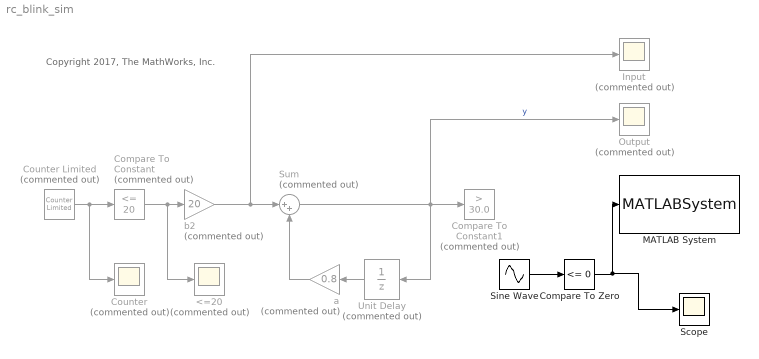
/*
 * Academic License - for use in teaching, academic research, and meeting
 * course requirements at degree granting institutions only.  Not for
 * government, commercial, or other organizational use.
 *
 * File: rc_blink_sim.c
 *
 * Code generated for Simulink model 'rc_blink_sim'.
 *
 * Model version                  : 1.89
 * Simulink Coder version         : 8.12 (R2017a) 16-Feb-2017
 * C/C++ source code generated on : Thu May 25 18:34:06 2017
 *
 * Target selection: ert.tlc
 * Embedded hardware selection: ARM Compatible->ARM Cortex
 * Code generation objectives: Unspecified
 * Validation result: Not run
 */

#include "rc_blink_sim.h"
#include "rc_blink_sim_private.h"
#include "rc_blink_sim_dt.h"
#define rc_blink_sim_rc_led_t          (1.0)

/* Block signals (auto storage) */
B_rc_blink_sim_T rc_blink_sim_B;

/* Block states (auto storage) */
DW_rc_blink_sim_T rc_blink_sim_DW;

/* Real-time model */
RT_MODEL_rc_blink_sim_T rc_blink_sim_M_;
RT_MODEL_rc_blink_sim_T *const rc_blink_sim_M = &rc_blink_sim_M_;

/* Model step function */
void rc_blink_sim_step(void)
{
  /* RelationalOperator: '<S3>/Compare' incorporates:
   *  Constant: '<S3>/Constant'
   *  Sin: '<Root>/Sine Wave'
   */
  rc_blink_sim_B.Compare = (uint8_T)(sin(((real_T)rc_blink_sim_DW.counter +
    rc_blink_sim_P.SineWave_Offset) * 2.0 * 3.1415926535897931 /
    rc_blink_sim_P.SineWave_NumSamp) * rc_blink_sim_P.SineWave_Amp +
    rc_blink_sim_P.SineWave_Bias <= rc_blink_sim_P.Constant_Value);

  /* Start for MATLABSystem: '<Root>/MATLAB System' incorporates:
   *  MATLABSystem: '<Root>/MATLAB System'
   */
  rc_set_led(rc_blink_sim_rc_led_t, rc_blink_sim_B.Compare);

  /* Update for Sin: '<Root>/Sine Wave' */
  rc_blink_sim_DW.counter++;
  if (rc_blink_sim_DW.counter == rc_blink_sim_P.SineWave_NumSamp) {
    rc_blink_sim_DW.counter = 0;
  }

  /* End of Update for Sin: '<Root>/Sine Wave' */

  /* External mode */
  rtExtModeUploadCheckTrigger(1);

  {                                    /* Sample time: [0.1s, 0.0s] */
    rtExtModeUpload(0, rc_blink_sim_M->Timing.taskTime0);
  }

  /* signal main to stop simulation */
  {                                    /* Sample time: [0.1s, 0.0s] */
    if ((rtmGetTFinal(rc_blink_sim_M)!=-1) &&
        !((rtmGetTFinal(rc_blink_sim_M)-rc_blink_sim_M->Timing.taskTime0) >
          rc_blink_sim_M->Timing.taskTime0 * (DBL_EPSILON))) {
      rtmSetErrorStatus(rc_blink_sim_M, "Simulation finished");
    }

    if (rtmGetStopRequested(rc_blink_sim_M)) {
      rtmSetErrorStatus(rc_blink_sim_M, "Simulation finished");
    }
  }

  /* Update absolute time for base rate */
  /* The "clockTick0" counts the number of times the code of this task has
   * been executed. The absolute time is the multiplication of "clockTick0"
   * and "Timing.stepSize0". Size of "clockTick0" ensures timer will not
   * overflow during the application lifespan selected.
   */
  rc_blink_sim_M->Timing.taskTime0 =
    (++rc_blink_sim_M->Timing.clockTick0) * rc_blink_sim_M->Timing.stepSize0;
}
